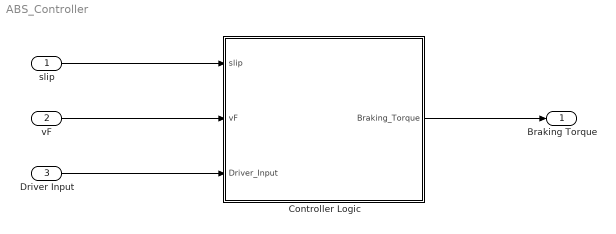
== stateflow chart ABS_Controller/Controller Logic ==
  state Low_Torque
    entry: Braking_Torque=BT_max;
    during: Braking_Torque=min(Braking_Torque - step_size , BT_max);
  state Braking
    during: Braking_Torque=BT_max;
  state No_Braking
    during: Braking_Torque=0;
  state ABS_ON
    during: Braking_Torque=0;
  Low_Torque -> No_Braking : [Driver_Input == 0]
  Braking -> Low_Torque [order 3] : [vF <= 1.786]
  (default) -> No_Braking
  No_Braking -> Braking : [Driver_Input == 1]
  Braking -> No_Braking [order 2] : [Driver_Input == 0]
  ABS_ON -> No_Braking [order 2] : [Driver_Input == 0]
  ABS_ON -> Braking [order 1] : [Driver_Input == 1 && slip <= 0.13]
  Braking -> ABS_ON [order 1] : [Driver_Input == 1 && slip > 0.13]
  data: slip input; vF input; Driver_Input input; Braking_Torque output; BT_max parameter; step_size constant double =0.1

/*
 * Academic License - for use in teaching, academic research, and meeting
 * course requirements at degree granting institutions only.  Not for
 * government, commercial, or other organizational use.
 *
 * File: ABS_Controller.c
 *
 * Code generated for Simulink model 'ABS_Controller'.
 *
 * Model version                  : 1.24
 * Simulink Coder version         : 24.2 (R2024b) 21-Jun-2024
 * C/C++ source code generated on : Tue Aug 12 13:20:11 2025
 *
 * Target selection: ert.tlc
 * Embedded hardware selection: Intel->x86-64 (Windows64)
 * Code generation objectives: Unspecified
 * Validation result: Not run
 */

#include "ABS_Controller.h"
#include "rtwtypes.h"
#include <math.h>

/* Named constants for Chart: '<Root>/Controller Logic' */
#define ABS_Controller_IN_ABS_ON       ((uint8_T)1U)
#define ABS_Controller_IN_Braking      ((uint8_T)2U)
#define ABS_Controller_IN_Low_Torque   ((uint8_T)3U)
#define ABS_Controller_IN_No_Braking   ((uint8_T)4U)
#define ABS_Controller_step_size       (0.1)

/* Block states (default storage) */
DW_ABS_Controller_T ABS_Controller_DW;

/* External inputs (root inport signals with default storage) */
ExtU_ABS_Controller_T ABS_Controller_U;

/* External outputs (root outports fed by signals with default storage) */
ExtY_ABS_Controller_T ABS_Controller_Y;

/* Real-time model */
static RT_MODEL_ABS_Controller_T ABS_Controller_M_;
RT_MODEL_ABS_Controller_T *const ABS_Controller_M = &ABS_Controller_M_;

/* Model output function */
void ABS_Controller_output(void)
{
  /* Chart: '<Root>/Controller Logic' incorporates:
   *  Inport: '<Root>/Driver Input'
   *  Inport: '<Root>/slip'
   *  Inport: '<Root>/vF'
   */
  if (ABS_Controller_DW.is_active_c3_ABS_Controller == 0) {
    ABS_Controller_DW.is_active_c3_ABS_Controller = 1U;
    ABS_Controller_DW.is_c3_ABS_Controller = ABS_Controller_IN_No_Braking;
  } else {
    switch (ABS_Controller_DW.is_c3_ABS_Controller) {
     case ABS_Controller_IN_ABS_ON:
      if ((ABS_Controller_U.DriverInput == 1.0) && (ABS_Controller_U.slip <=
           0.13)) {
        ABS_Controller_DW.is_c3_ABS_Controller = ABS_Controller_IN_Braking;
      } else if (ABS_Controller_U.DriverInput == 0.0) {
        ABS_Controller_DW.is_c3_ABS_Controller = ABS_Controller_IN_No_Braking;
      } else {
        /* Outport: '<Root>/Braking Torque' */
        ABS_Controller_Y.BrakingTorque = 0.0;
      }
      break;

     case ABS_Controller_IN_Braking:
      if ((ABS_Controller_U.DriverInput == 1.0) && (ABS_Controller_U.slip > 0.13))
      {
        ABS_Controller_DW.is_c3_ABS_Controller = ABS_Controller_IN_ABS_ON;
      } else if (ABS_Controller_U.DriverInput == 0.0) {
        ABS_Controller_DW.is_c3_ABS_Controller = ABS_Controller_IN_No_Braking;
      } else if (ABS_Controller_U.vF <= 1.786) {
        ABS_Controller_DW.is_c3_ABS_Controller = ABS_Controller_IN_Low_Torque;

        /* Outport: '<Root>/Braking Torque' */
        ABS_Controller_Y.BrakingTorque = 5355.0;
      } else {
        /* Outport: '<Root>/Braking Torque' */
        ABS_Controller_Y.BrakingTorque = 5355.0;
      }
      break;

     case ABS_Controller_IN_Low_Torque:
      if (ABS_Controller_U.DriverInput == 0.0) {
        ABS_Controller_DW.is_c3_ABS_Controller = ABS_Controller_IN_No_Braking;
      } else {
        /* Outport: '<Root>/Braking Torque' */
        ABS_Controller_Y.BrakingTorque = fmin(ABS_Controller_Y.BrakingTorque -
          ABS_Controller_step_size, 5355.0);
      }
      break;

     default:
      /* case IN_No_Braking: */
      if (ABS_Controller_U.DriverInput == 1.0) {
        ABS_Controller_DW.is_c3_ABS_Controller = ABS_Controller_IN_Braking;
      } else {
        /* Outport: '<Root>/Braking Torque' */
        ABS_Controller_Y.BrakingTorque = 0.0;
      }
      break;
    }
  }

  /* End of Chart: '<Root>/Controller Logic' */
}

/* Model update function */
void ABS_Controller_update(void)
{
  /* (no update code required) */
}
